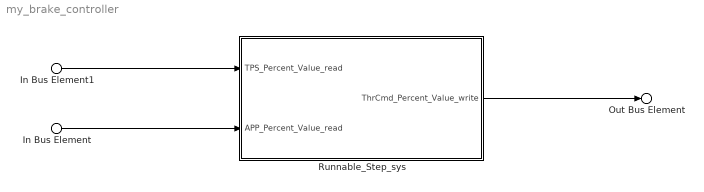
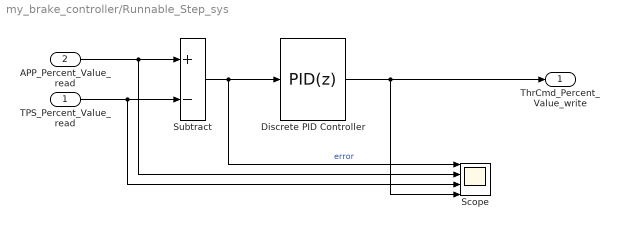
/*
 * File: my_brake_controller.c
 *
 * Code generated for Simulink model 'my_brake_controller'.
 *
 * Model version                  : 10.3
 * Simulink Coder version         : 24.1 (R2024a) 19-Nov-2023
 * C/C++ source code generated on : Mon Aug 12 17:49:28 2024
 *
 * Target selection: autosar.tlc
 * Embedded hardware selection: Intel->x86-64 (Windows64)
 * Code generation objectives: Unspecified
 * Validation result: Not run
 */

#include "my_brake_controller.h"
#include "Platform_Types.h"

/* PublicStructure Variables for Internal Data */
ARID_DEF_my_brake_controller_T my_brake_controller_ARID_DEF;/* '<S40>/Integrator' */

/* Model step function */
void Runnable_Step(void)
{
  float32 rtb_DeadZone;
  float32 rtb_IntegralGain;
  float32 rtb_Sum;
  sint8 tmp;
  sint8 tmp_0;

  /* Outputs for Atomic SubSystem: '<Root>/Runnable_Step_sys' */
  /* Gain: '<S37>/Integral Gain' incorporates:
   *  Inport generated from: '<Root>/In Bus Element'
   *  Inport generated from: '<Root>/In Bus Element1'
   *  Sum: '<S1>/Subtract'
   */
  rtb_IntegralGain = Rte_IRead_Runnable_Step_APP_Percent_Value() -
    Rte_IRead_Runnable_Step_TPS_Percent_Value();

  /* Sum: '<S49>/Sum' incorporates:
   *  Delay: '<S33>/UD'
   *  DiscreteIntegrator: '<S40>/Integrator'
   *  Sum: '<S33>/Diff'
   */
  rtb_Sum = (rtb_IntegralGain + my_brake_controller_ARID_DEF.Integrator_DSTATE)
    + (0.0F - my_brake_controller_ARID_DEF.UD_DSTATE);

  /* DeadZone: '<S30>/DeadZone' */
  if (rtb_Sum > 100.0F) {
    /* DeadZone: '<S30>/DeadZone' */
    rtb_DeadZone = rtb_Sum - 100.0F;
  } else if (rtb_Sum >= -100.0F) {
    /* DeadZone: '<S30>/DeadZone' */
    rtb_DeadZone = 0.0F;
  } else {
    /* DeadZone: '<S30>/DeadZone' */
    rtb_DeadZone = rtb_Sum - -100.0F;
  }

  /* End of DeadZone: '<S30>/DeadZone' */

  /* Gain: '<S37>/Integral Gain' */
  rtb_IntegralGain *= 2.0F;

  /* Switch: '<S28>/Switch1' incorporates:
   *  Constant: '<S28>/Clamping_zero'
   *  Constant: '<S28>/Constant'
   *  Constant: '<S28>/Constant2'
   *  RelationalOperator: '<S28>/fix for DT propagation issue'
   */
  if (rtb_DeadZone > 0.0F) {
    tmp = 1;
  } else {
    tmp = -1;
  }

  /* Switch: '<S28>/Switch2' incorporates:
   *  Constant: '<S28>/Clamping_zero'
   *  Constant: '<S28>/Constant3'
   *  Constant: '<S28>/Constant4'
   *  RelationalOperator: '<S28>/fix for DT propagation issue1'
   */
  if (rtb_IntegralGain > 0.0F) {
    tmp_0 = 1;
  } else {
    tmp_0 = -1;
  }

  /* Switch: '<S28>/Switch' incorporates:
   *  Constant: '<S28>/Clamping_zero'
   *  Constant: '<S28>/Constant1'
   *  Logic: '<S28>/AND3'
   *  RelationalOperator: '<S28>/Equal1'
   *  RelationalOperator: '<S28>/Relational Operator'
   *  Switch: '<S28>/Switch1'
   *  Switch: '<S28>/Switch2'
   */
  if ((rtb_DeadZone != 0.0F) && (tmp == tmp_0)) {
    rtb_IntegralGain = 0.0F;
  }

  /* Update for DiscreteIntegrator: '<S40>/Integrator' incorporates:
   *  Switch: '<S28>/Switch'
   */
  my_brake_controller_ARID_DEF.Integrator_DSTATE += 0.005F * rtb_IntegralGain;

  /* Update for Delay: '<S33>/UD' */
  my_brake_controller_ARID_DEF.UD_DSTATE = 0.0F;

  /* Saturate: '<S47>/Saturation' */
  if (rtb_Sum > 100.0F) {
    rtb_Sum = 100.0F;
  } else if (rtb_Sum < -100.0F) {
    rtb_Sum = -100.0F;
  }

  /* Outport generated from: '<Root>/Out Bus Element' incorporates:
   *  Saturate: '<S47>/Saturation'
   */
  Rte_IWrite_Runnable_Step_ThrCmd_Percent_Value(rtb_Sum);

  /* End of Outputs for SubSystem: '<Root>/Runnable_Step_sys' */
}
